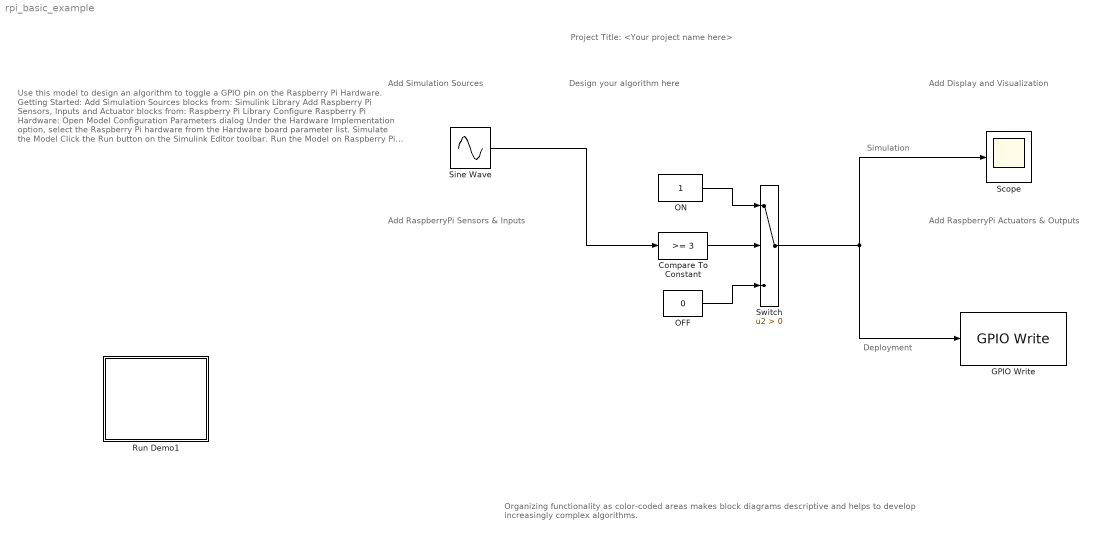
== system rpi_basic_example/Run Demo1 ==

/*
 * rpi_basic_example.c
 *
 * Code generation for model "rpi_basic_example".
 *
 * Model version              : 1.0
 * Simulink Coder version : 9.8 (R2022b) 13-May-2022
 * C source code generated on : Thu Dec 28 13:54:30 2023
 *
 * Target selection: ert.tlc
 * Note: GRT includes extra infrastructure and instrumentation for prototyping
 * Embedded hardware selection: ARM Compatible->ARM Cortex
 * Code generation objectives: Unspecified
 * Validation result: Not run
 */

#include "rpi_basic_example.h"
#include "rtwtypes.h"
#include <math.h>
#include "rpi_basic_example_private.h"
#include <string.h>

/* Block states (default storage) */
DW_rpi_basic_example_T rpi_basic_example_DW;

/* Real-time model */
static RT_MODEL_rpi_basic_example_T rpi_basic_example_M_;
RT_MODEL_rpi_basic_example_T *const rpi_basic_example_M = &rpi_basic_example_M_;
real_T rt_roundd_snf(real_T u)
{
  real_T y;
  if (fabs(u) < 4.503599627370496E+15) {
    if (u >= 0.5) {
      y = floor(u + 0.5);
    } else if (u > -0.5) {
      y = u * 0.0;
    } else {
      y = ceil(u - 0.5);
    }
  } else {
    y = u;
  }

  return y;
}

/* Model step function */
void rpi_basic_example_step(void)
{
  real_T rtb_Switch;
  real_T tmp;
  uint8_T tmp_0;

  /* Switch: '<Root>/Switch' incorporates:
   *  Constant: '<Root>/OFF'
   *  Constant: '<Root>/ON'
   *  Constant: '<S1>/Constant'
   *  RelationalOperator: '<S1>/Compare'
   *  Sin: '<Root>/Sine Wave'
   */
  if (sin(((real_T)rpi_basic_example_DW.counter +
           rpi_basic_example_P.SineWave_Offset) * 2.0 * 3.1415926535897931 /
          rpi_basic_example_P.SineWave_NumSamp) *
      rpi_basic_example_P.SineWave_Amp + rpi_basic_example_P.SineWave_Bias >=
      rpi_basic_example_P.CompareToConstant_const) {
    rtb_Switch = rpi_basic_example_P.ON_Value;
  } else {
    rtb_Switch = rpi_basic_example_P.OFF_Value;
  }

  /* End of Switch: '<Root>/Switch' */

  /* MATLABSystem: '<S2>/Digital Write' */
  tmp = rt_roundd_snf(rtb_Switch);
  if (tmp < 256.0) {
    if (tmp >= 0.0) {
      tmp_0 = (uint8_T)tmp;
    } else {
      tmp_0 = 0U;
    }
  } else {
    tmp_0 = MAX_uint8_T;
  }

  EXT_GPIO_write(17U, tmp_0);

  /* End of MATLABSystem: '<S2>/Digital Write' */
  /* Update for Sin: '<Root>/Sine Wave' */
  rpi_basic_example_DW.counter++;
  if (rpi_basic_example_DW.counter == rpi_basic_example_P.SineWave_NumSamp) {
    rpi_basic_example_DW.counter = 0;
  }

  /* End of Update for Sin: '<Root>/Sine Wave' */
}
